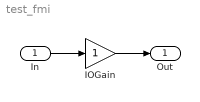
/*
 * test_fmi.c
 *
 * Code generation for model "test_fmi".
 *
 * Model version              : 1.7
 * Simulink Coder version : 9.8 (R2022b) 13-May-2022
 * C source code generated on : Sat Sep 24 16:49:42 2022
 *
 * Target selection: grt.tlc
 * Note: GRT includes extra infrastructure and instrumentation for prototyping
 * Embedded hardware selection: Intel->x86-64 (Windows64)
 * Code generation objectives: Unspecified
 * Validation result: Not run
 */

#include "test_fmi.h"
#include "rt_logging_mmi.h"
#include "test_fmi_capi.h"
#include "test_fmi_private.h"
#include "rt_nonfinite.h"

/* Model step function */
void test_fmi_step(RT_MODEL_test_fmi_T *const test_fmi_M)
{
  ExtU_test_fmi_T *test_fmi_U = (ExtU_test_fmi_T *) test_fmi_M->inputs;
  ExtY_test_fmi_T *test_fmi_Y = (ExtY_test_fmi_T *) test_fmi_M->outputs;

  /* Outport: '<Root>/Out' incorporates:
   *  Gain: '<Root>/IOGain'
   */
  test_fmi_Y->Out = test_fmi_P.IOGain_Gain * test_fmi_U->In;

  /* Matfile logging */
  rt_UpdateTXYLogVars(test_fmi_M->rtwLogInfo, (&test_fmi_M->Timing.taskTime0));

  /* signal main to stop simulation */
  {                                    /* Sample time: [0.2s, 0.0s] */
    if ((rtmGetTFinal(test_fmi_M)!=-1) &&
        !((rtmGetTFinal(test_fmi_M)-test_fmi_M->Timing.taskTime0) >
          test_fmi_M->Timing.taskTime0 * (DBL_EPSILON))) {
      rtmSetErrorStatus(test_fmi_M, "Simulation finished");
    }
  }

  /* Update absolute time for base rate */
  /* The "clockTick0" counts the number of times the code of this task has
   * been executed. The absolute time is the multiplication of "clockTick0"
   * and "Timing.stepSize0". Size of "clockTick0" ensures timer will not
   * overflow during the application lifespan selected.
   * Timer of this task consists of two 32 bit unsigned integers.
   * The two integers represent the low bits Timing.clockTick0 and the high bits
   * Timing.clockTickH0. When the low bit overflows to 0, the high bits increment.
   */
  if (!(++test_fmi_M->Timing.clockTick0)) {
    ++test_fmi_M->Timing.clockTickH0;
  }

  test_fmi_M->Timing.taskTime0 = test_fmi_M->Timing.clockTick0 *
    test_fmi_M->Timing.stepSize0 + test_fmi_M->Timing.clockTickH0 *
    test_fmi_M->Timing.stepSize0 * 4294967296.0;
}
